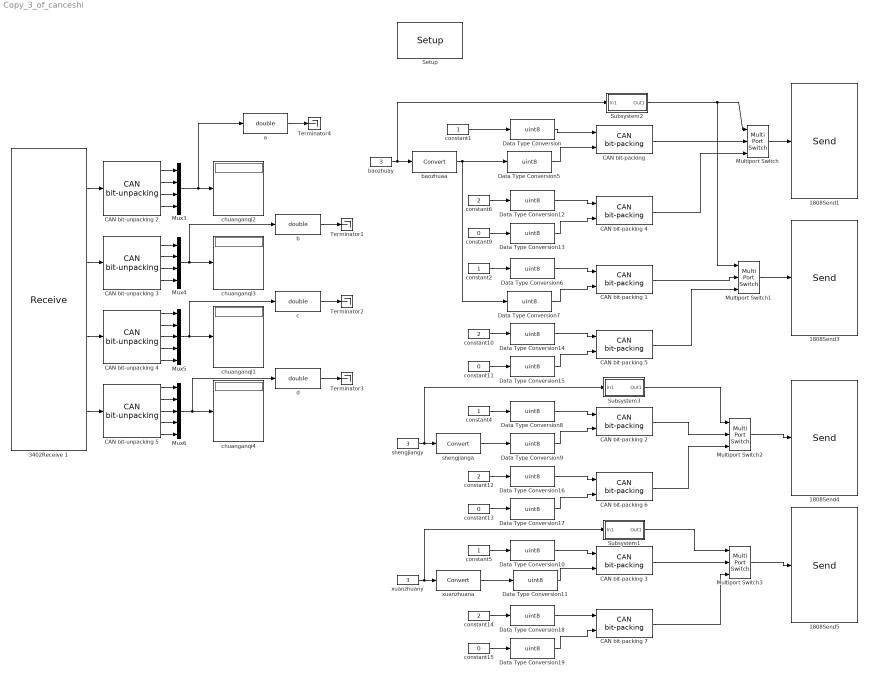
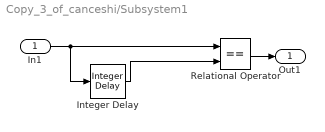
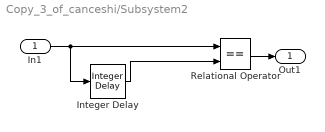
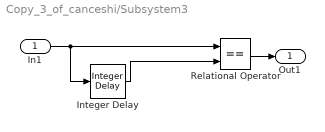
/*
 * Copy_3_of_canceshi.c
 *
 * Real-Time Workshop code generation for Simulink model "Copy_3_of_canceshi.mdl".
 *
 * Model version              : 1.71
 * Real-Time Workshop version : 7.6  (R2010b)  03-Aug-2010
 * C source code generated on : Wed May 27 09:28:19 2020
 *
 * Target selection: xpctarget.tlc
 * Note: GRT includes extra infrastructure and instrumentation for prototyping
 * Embedded hardware selection: Generic->32-bit x86 compatible
 * Code generation objectives: Unspecified
 * Validation result: Not run
 */

#include "rt_logging_mmi.h"
#include "Copy_3_of_canceshi_capi.h"
#include "Copy_3_of_canceshi.h"
#include "Copy_3_of_canceshi_private.h"
#include <stdio.h>
#include "Copy_3_of_canceshi_dt.h"

/* Block signals (auto storage) */
BlockIO_Copy_3_of_canceshi Copy_3_of_canceshi_B;

/* Block states (auto storage) */
D_Work_Copy_3_of_canceshi Copy_3_of_canceshi_DWork;

/* Real-time model */
rtModel_Copy_3_of_canceshi Copy_3_of_canceshi_rtM_;
rtModel_Copy_3_of_canceshi *Copy_3_of_canceshi_rtM = &Copy_3_of_canceshi_rtM_;

/* Model output function */
void Copy_3_of_canceshi_output(int_T tid)
{
  real_T tmp;

  /* S-Function (sfix_udelay): '<S2>/Integer Delay' */
  Copy_3_of_canceshi_B.IntegerDelay = Copy_3_of_canceshi_DWork.IntegerDelay_X;

  /* RelationalOperator: '<S2>/Relational Operator' incorporates:
   *  Constant: '<Root>/baozhuay'
   */
  Copy_3_of_canceshi_B.RelationalOperator = (Copy_3_of_canceshi_P.baozhuay_Value
    == Copy_3_of_canceshi_B.IntegerDelay);

  /* DataTypeConversion: '<Root>/Data Type Conversion' incorporates:
   *  Constant: '<Root>/constant1'
   */
  tmp = Copy_3_of_canceshi_P.constant1_Value;
  if (rtIsNaN(tmp) || rtIsInf(tmp)) {
    tmp = 0.0;
  } else {
    tmp = fmod(floor(tmp), 256.0);
  }

  Copy_3_of_canceshi_B.DataTypeConversion = (uint8_T)(tmp < 0.0 ? (uint8_T)
    (int8_T)(-((int8_T)(uint8_T)(-tmp))) : (uint8_T)tmp);

  /* DataTypeConversion: '<Root>/baozhuaa' incorporates:
   *  Constant: '<Root>/baozhuay'
   */
  Copy_3_of_canceshi_B.baozhuaa = Copy_3_of_canceshi_P.baozhuay_Value;

  /* DataTypeConversion: '<Root>/Data Type Conversion5' */
  tmp = Copy_3_of_canceshi_B.baozhuaa;
  if (rtIsNaN(tmp) || rtIsInf(tmp)) {
    tmp = 0.0;
  } else {
    tmp = fmod(floor(tmp), 256.0);
  }

  Copy_3_of_canceshi_B.DataTypeConversion5 = (uint8_T)(tmp < 0.0 ? (uint8_T)
    (int8_T)(-((int8_T)(uint8_T)(-tmp))) : (uint8_T)tmp);

  /* Bit Packing: <Root>/CAN bit-packing  */
  {
    uint32_T *y = (uint32_T *)&Copy_3_of_canceshi_B.CANbitpacking;
    y[0] =
      ((uint32_T)(Copy_3_of_canceshi_B.DataTypeConversion & 0xff) |
       ((uint32_T)(Copy_3_of_canceshi_B.DataTypeConversion5 & 0xff) << 8));
  }

  /* DataTypeConversion: '<Root>/Data Type Conversion12' incorporates:
   *  Constant: '<Root>/constant6'
   */
  tmp = Copy_3_of_canceshi_P.constant6_Value;
  if (rtIsNaN(tmp) || rtIsInf(tmp)) {
    tmp = 0.0;
  } else {
    tmp = fmod(floor(tmp), 256.0);
  }

  Copy_3_of_canceshi_B.DataTypeConversion12 = (uint8_T)(tmp < 0.0 ? (uint8_T)
    (int8_T)(-((int8_T)(uint8_T)(-tmp))) : (uint8_T)tmp);

  /* DataTypeConversion: '<Root>/Data Type Conversion13' incorporates:
   *  Constant: '<Root>/constant9'
   */
  tmp = Copy_3_of_canceshi_P.constant9_Value;
  if (rtIsNaN(tmp) || rtIsInf(tmp)) {
    tmp = 0.0;
  } else {
    tmp = fmod(floor(tmp), 256.0);
  }

  Copy_3_of_canceshi_B.DataTypeConversion13 = (uint8_T)(tmp < 0.0 ? (uint8_T)
    (int8_T)(-((int8_T)(uint8_T)(-tmp))) : (uint8_T)tmp);

  /* Bit Packing: <Root>/CAN bit-packing 4 */
  {
    uint32_T *y = (uint32_T *)&Copy_3_of_canceshi_B.CANbitpacking4;
    y[0] =
      ((uint32_T)(Copy_3_of_canceshi_B.DataTypeConversion12 & 0xff) |
       ((uint32_T)(Copy_3_of_canceshi_B.DataTypeConversion13 & 0xff) << 8));
  }

  /* MultiPortSwitch: '<Root>/Multiport Switch' */
  if ((int32_T)Copy_3_of_canceshi_B.RelationalOperator == 0) {
    Copy_3_of_canceshi_B.MultiportSwitch = Copy_3_of_canceshi_B.CANbitpacking;
  } else {
    Copy_3_of_canceshi_B.MultiportSwitch = Copy_3_of_canceshi_B.CANbitpacking4;
  }

  /* S-Function (canac2objsend): '<Root>/1808Send1' */
  {
    /*------------ S-Function Block: <Root>/1808Send1 ------------*/
    if (!g_xpccanac2busstatus[1-1]) {
      int_T stat;
      EFLAGS_T flags;
      flags = saveAndDisableInterrupts();
      stat = CANPC_write_object_mb1(0, 8, (uint8_T *)
        &Copy_3_of_canceshi_B.MultiportSwitch);
      restoreInterrupts(flags);
      ;
    }
  }

  /* DataTypeConversion: '<Root>/Data Type Conversion6' incorporates:
   *  Constant: '<Root>/constant2'
   */
  tmp = Copy_3_of_canceshi_P.constant2_Value;
  if (rtIsNaN(tmp) || rtIsInf(tmp)) {
    tmp = 0.0;
  } else {
    tmp = fmod(floor(tmp), 256.0);
  }

  Copy_3_of_canceshi_B.DataTypeConversion6 = (uint8_T)(tmp < 0.0 ? (uint8_T)
    (int8_T)(-((int8_T)(uint8_T)(-tmp))) : (uint8_T)tmp);

  /* DataTypeConversion: '<Root>/Data Type Conversion7' */
  tmp = Copy_3_of_canceshi_B.baozhuaa;
  if (rtIsNaN(tmp) || rtIsInf(tmp)) {
    tmp = 0.0;
  } else {
    tmp = fmod(floor(tmp), 256.0);
  }

  Copy_3_of_canceshi_B.DataTypeConversion7 = (uint8_T)(tmp < 0.0 ? (uint8_T)
    (int8_T)(-((int8_T)(uint8_T)(-tmp))) : (uint8_T)tmp);

  /* Bit Packing: <Root>/CAN bit-packing 1 */
  {
    uint32_T *y = (uint32_T *)&Copy_3_of_canceshi_B.CANbitpacking1;
    y[0] =
      ((uint32_T)(Copy_3_of_canceshi_B.DataTypeConversion6 & 0xff) |
       ((uint32_T)(Copy_3_of_canceshi_B.DataTypeConversion7 & 0xff) << 8));
  }

  /* DataTypeConversion: '<Root>/Data Type Conversion14' incorporates:
   *  Constant: '<Root>/constant10'
   */
  tmp = Copy_3_of_canceshi_P.constant10_Value;
  if (rtIsNaN(tmp) || rtIsInf(tmp)) {
    tmp = 0.0;
  } else {
    tmp = fmod(floor(tmp), 256.0);
  }

  Copy_3_of_canceshi_B.DataTypeConversion14 = (uint8_T)(tmp < 0.0 ? (uint8_T)
    (int8_T)(-((int8_T)(uint8_T)(-tmp))) : (uint8_T)tmp);

  /* DataTypeConversion: '<Root>/Data Type Conversion15' incorporates:
   *  Constant: '<Root>/constant11'
   */
  tmp = Copy_3_of_canceshi_P.constant11_Value;
  if (rtIsNaN(tmp) || rtIsInf(tmp)) {
    tmp = 0.0;
  } else {
    tmp = fmod(floor(tmp), 256.0);
  }

  Copy_3_of_canceshi_B.DataTypeConversion15 = (uint8_T)(tmp < 0.0 ? (uint8_T)
    (int8_T)(-((int8_T)(uint8_T)(-tmp))) : (uint8_T)tmp);

  /* Bit Packing: <Root>/CAN bit-packing 5 */
  {
    uint32_T *y = (uint32_T *)&Copy_3_of_canceshi_B.CANbitpacking5;
    y[0] =
      ((uint32_T)(Copy_3_of_canceshi_B.DataTypeConversion14 & 0xff) |
       ((uint32_T)(Copy_3_of_canceshi_B.DataTypeConversion15 & 0xff) << 8));
  }

  /* MultiPortSwitch: '<Root>/Multiport Switch1' */
  if ((int32_T)Copy_3_of_canceshi_B.RelationalOperator == 0) {
    Copy_3_of_canceshi_B.MultiportSwitch1 = Copy_3_of_canceshi_B.CANbitpacking1;
  } else {
    Copy_3_of_canceshi_B.MultiportSwitch1 = Copy_3_of_canceshi_B.CANbitpacking5;
  }

  /* S-Function (canac2objsend): '<Root>/1808Send3' */
  {
    /*------------ S-Function Block: <Root>/1808Send3 ------------*/
    if (!g_xpccanac2busstatus[1-1]) {
      int_T stat;
      EFLAGS_T flags;
      flags = saveAndDisableInterrupts();
      stat = CANPC_write_object2_mb1(0, 8, (uint8_T *)
        &Copy_3_of_canceshi_B.MultiportSwitch1);
      restoreInterrupts(flags);
      ;
    }
  }

  /* S-Function (sfix_udelay): '<S3>/Integer Delay' */
  Copy_3_of_canceshi_B.IntegerDelay_j =
    Copy_3_of_canceshi_DWork.IntegerDelay_X_b;

  /* RelationalOperator: '<S3>/Relational Operator' incorporates:
   *  Constant: '<Root>/shengjiangy'
   */
  Copy_3_of_canceshi_B.RelationalOperator_h =
    (Copy_3_of_canceshi_P.shengjiangy_Value ==
     Copy_3_of_canceshi_B.IntegerDelay_j);

  /* DataTypeConversion: '<Root>/Data Type Conversion8' incorporates:
   *  Constant: '<Root>/constant4'
   */
  tmp = Copy_3_of_canceshi_P.constant4_Value;
  if (rtIsNaN(tmp) || rtIsInf(tmp)) {
    tmp = 0.0;
  } else {
    tmp = fmod(floor(tmp), 256.0);
  }

  Copy_3_of_canceshi_B.DataTypeConversion8 = (uint8_T)(tmp < 0.0 ? (uint8_T)
    (int8_T)(-((int8_T)(uint8_T)(-tmp))) : (uint8_T)tmp);

  /* DataTypeConversion: '<Root>/shengjianga' incorporates:
   *  Constant: '<Root>/shengjiangy'
   */
  Copy_3_of_canceshi_B.shengjianga = Copy_3_of_canceshi_P.shengjiangy_Value;

  /* DataTypeConversion: '<Root>/Data Type Conversion9' */
  tmp = Copy_3_of_canceshi_B.shengjianga;
  if (rtIsNaN(tmp) || rtIsInf(tmp)) {
    tmp = 0.0;
  } else {
    tmp = fmod(floor(tmp), 256.0);
  }

  Copy_3_of_canceshi_B.DataTypeConversion9 = (uint8_T)(tmp < 0.0 ? (uint8_T)
    (int8_T)(-((int8_T)(uint8_T)(-tmp))) : (uint8_T)tmp);

  /* Bit Packing: <Root>/CAN bit-packing 2 */
  {
    uint32_T *y = (uint32_T *)&Copy_3_of_canceshi_B.CANbitpacking2;
    y[0] =
      ((uint32_T)(Copy_3_of_canceshi_B.DataTypeConversion8 & 0xff) |
       ((uint32_T)(Copy_3_of_canceshi_B.DataTypeConversion9 & 0xff) << 8));
  }

  /* DataTypeConversion: '<Root>/Data Type Conversion16' incorporates:
   *  Constant: '<Root>/constant12'
   */
  tmp = Copy_3_of_canceshi_P.constant12_Value;
  if (rtIsNaN(tmp) || rtIsInf(tmp)) {
    tmp = 0.0;
  } else {
    tmp = fmod(floor(tmp), 256.0);
  }

  Copy_3_of_canceshi_B.DataTypeConversion16 = (uint8_T)(tmp < 0.0 ? (uint8_T)
    (int8_T)(-((int8_T)(uint8_T)(-tmp))) : (uint8_T)tmp);

  /* DataTypeConversion: '<Root>/Data Type Conversion17' incorporates:
   *  Constant: '<Root>/constant13'
   */
  tmp = Copy_3_of_canceshi_P.constant13_Value;
  if (rtIsNaN(tmp) || rtIsInf(tmp)) {
    tmp = 0.0;
  } else {
    tmp = fmod(floor(tmp), 256.0);
  }

  Copy_3_of_canceshi_B.DataTypeConversion17 = (uint8_T)(tmp < 0.0 ? (uint8_T)
    (int8_T)(-((int8_T)(uint8_T)(-tmp))) : (uint8_T)tmp);

  /* Bit Packing: <Root>/CAN bit-packing 6 */
  {
    uint32_T *y = (uint32_T *)&Copy_3_of_canceshi_B.CANbitpacking6;
    y[0] =
      ((uint32_T)(Copy_3_of_canceshi_B.DataTypeConversion16 & 0xff) |
       ((uint32_T)(Copy_3_of_canceshi_B.DataTypeConversion17 & 0xff) << 8));
  }

  /* MultiPortSwitch: '<Root>/Multiport Switch2' */
  if ((int32_T)Copy_3_of_canceshi_B.RelationalOperator_h == 0) {
    Copy_3_of_canceshi_B.MultiportSwitch2 = Copy_3_of_canceshi_B.CANbitpacking2;
  } else {
    Copy_3_of_canceshi_B.MultiportSwitch2 = Copy_3_of_canceshi_B.CANbitpacking6;
  }

  /* S-Function (canac2objsend): '<Root>/1808Send4' */
  {
    /*------------ S-Function Block: <Root>/1808Send4 ------------*/
    if (!g_xpccanac2busstatus[1-1]) {
      int_T stat;
      EFLAGS_T flags;
      flags = saveAndDisableInterrupts();
      stat = CANPC_write_object2_mb1(1, 8, (uint8_T *)
        &Copy_3_of_canceshi_B.MultiportSwitch2);
      restoreInterrupts(flags);
      ;
    }
  }

  /* S-Function (sfix_udelay): '<S1>/Integer Delay' */
  Copy_3_of_canceshi_B.IntegerDelay_d =
    Copy_3_of_canceshi_DWork.IntegerDelay_X_h;

  /* RelationalOperator: '<S1>/Relational Operator' incorporates:
   *  Constant: '<Root>/xuanzhuany'
   */
  Copy_3_of_canceshi_B.RelationalOperator_e =
    (Copy_3_of_canceshi_P.xuanzhuany_Value ==
     Copy_3_of_canceshi_B.IntegerDelay_d);

  /* DataTypeConversion: '<Root>/Data Type Conversion10' incorporates:
   *  Constant: '<Root>/constant5'
   */
  tmp = Copy_3_of_canceshi_P.constant5_Value;
  if (rtIsNaN(tmp) || rtIsInf(tmp)) {
    tmp = 0.0;
  } else {
    tmp = fmod(floor(tmp), 256.0);
  }

  Copy_3_of_canceshi_B.DataTypeConversion10 = (uint8_T)(tmp < 0.0 ? (uint8_T)
    (int8_T)(-((int8_T)(uint8_T)(-tmp))) : (uint8_T)tmp);

  /* DataTypeConversion: '<Root>/xuanzhuana' incorporates:
   *  Constant: '<Root>/xuanzhuany'
   */
  Copy_3_of_canceshi_B.xuanzhuana = Copy_3_of_canceshi_P.xuanzhuany_Value;

  /* DataTypeConversion: '<Root>/Data Type Conversion11' */
  tmp = Copy_3_of_canceshi_B.xuanzhuana;
  if (rtIsNaN(tmp) || rtIsInf(tmp)) {
    tmp = 0.0;
  } else {
    tmp = fmod(floor(tmp), 256.0);
  }

  Copy_3_of_canceshi_B.DataTypeConversion11 = (uint8_T)(tmp < 0.0 ? (uint8_T)
    (int8_T)(-((int8_T)(uint8_T)(-tmp))) : (uint8_T)tmp);

  /* Bit Packing: <Root>/CAN bit-packing 3 */
  {
    uint32_T *y = (uint32_T *)&Copy_3_of_canceshi_B.CANbitpacking3;
    y[0] =
      ((uint32_T)(Copy_3_of_canceshi_B.DataTypeConversion10 & 0xff) |
       ((uint32_T)(Copy_3_of_canceshi_B.DataTypeConversion11 & 0xff) << 8));
  }

  /* DataTypeConversion: '<Root>/Data Type Conversion18' incorporates:
   *  Constant: '<Root>/constant14'
   */
  tmp = Copy_3_of_canceshi_P.constant14_Value;
  if (rtIsNaN(tmp) || rtIsInf(tmp)) {
    tmp = 0.0;
  } else {
    tmp = fmod(floor(tmp), 256.0);
  }

  Copy_3_of_canceshi_B.DataTypeConversion18 = (uint8_T)(tmp < 0.0 ? (uint8_T)
    (int8_T)(-((int8_T)(uint8_T)(-tmp))) : (uint8_T)tmp);

  /* DataTypeConversion: '<Root>/Data Type Conversion19' incorporates:
   *  Constant: '<Root>/constant15'
   */
  tmp = Copy_3_of_canceshi_P.constant15_Value;
  if (rtIsNaN(tmp) || rtIsInf(tmp)) {
    tmp = 0.0;
  } else {
    tmp = fmod(floor(tmp), 256.0);
  }

  Copy_3_of_canceshi_B.DataTypeConversion19 = (uint8_T)(tmp < 0.0 ? (uint8_T)
    (int8_T)(-((int8_T)(uint8_T)(-tmp))) : (uint8_T)tmp);

  /* Bit Packing: <Root>/CAN bit-packing 7 */
  {
    uint32_T *y = (uint32_T *)&Copy_3_of_canceshi_B.CANbitpacking7;
    y[0] =
      ((uint32_T)(Copy_3_of_canceshi_B.DataTypeConversion18 & 0xff) |
       ((uint32_T)(Copy_3_of_canceshi_B.DataTypeConversion19 & 0xff) << 8));
  }

  /* MultiPortSwitch: '<Root>/Multiport Switch3' */
  if ((int32_T)Copy_3_of_canceshi_B.RelationalOperator_e == 0) {
    Copy_3_of_canceshi_B.MultiportSwitch3 = Copy_3_of_canceshi_B.CANbitpacking3;
  } else {
    Copy_3_of_canceshi_B.MultiportSwitch3 = Copy_3_of_canceshi_B.CANbitpacking7;
  }

  /* S-Function (canac2objsend): '<Root>/1808Send5' */
  {
    /*------------ S-Function Block: <Root>/1808Send5 ------------*/
    if (!g_xpccanac2busstatus[1-1]) {
      int_T stat;
      EFLAGS_T flags;
      flags = saveAndDisableInterrupts();
      stat = CANPC_write_object2_mb1(2, 8, (uint8_T *)
        &Copy_3_of_canceshi_B.MultiportSwitch3);
      restoreInterrupts(flags);
      ;
    }
  }

  /* S-Function (canac2objreceive): '<Root>/3402Receive 1' */
  {
    /*------------ S-Function Block: <Root>/3402Receive 1 ------------*/
    if (!g_xpccanac2busstatus[1-1]) {
      int_T stat;
      EFLAGS_T flags;
      unsigned long time;
      uint8_T p_data[8];
      flags = saveAndDisableInterrupts();
      stat = CANPC_read_rcv_data2_mb1(0, p_data, &time );
      restoreInterrupts(flags);
      if (stat > 0 || stat == -1 || stat == -2) {
        memcpy( &Copy_3_of_canceshi_B.u02Receive1_o1, p_data, 8);
      }

      flags = saveAndDisableInterrupts();
      stat = CANPC_read_rcv_data2_mb1(1, p_data, &time );
      restoreInterrupts(flags);
      if (stat > 0 || stat == -1 || stat == -2) {
        memcpy( &Copy_3_of_canceshi_B.u02Receive1_o2, p_data, 8);
      }

      flags = saveAndDisableInterrupts();
      stat = CANPC_read_rcv_data2_mb1(2, p_data, &time );
      restoreInterrupts(flags);
      if (stat > 0 || stat == -1 || stat == -2) {
        memcpy( &Copy_3_of_canceshi_B.u02Receive1_o3, p_data, 8);
      }

      flags = saveAndDisableInterrupts();
      stat = CANPC_read_rcv_data2_mb1(3, p_data, &time );
      restoreInterrupts(flags);
      if (stat > 0 || stat == -1 || stat == -2) {
        memcpy( &Copy_3_of_canceshi_B.u02Receive1_o4, p_data, 8);
      }
    }
  }

  /* Bit Unpacking: <Root>/CAN bit-unpacking 4 */
  {
    const uint32_T *y = (const uint32_T *)&Copy_3_of_canceshi_B.u02Receive1_o3;

    /* Output Port 1 */
    Copy_3_of_canceshi_B.CANbitunpacking4_o1 = (uint8_T)
      (y[0] & 0xff);

    /* Output Port 2 */
    Copy_3_of_canceshi_B.CANbitunpacking4_o2 = (uint8_T)
      ((y[0] & (0xff << 8)) >> 8);

    /* Output Port 3 */
    Copy_3_of_canceshi_B.CANbitunpacking4_o3 = (uint8_T)
      ((y[0] & (0xff << 16)) >> 16);

    /* Output Port 4 */
    Copy_3_of_canceshi_B.CANbitunpacking4_o4 = (uint8_T)
      ((y[0] & (0xff << 24)) >> 24);

    /* Output Port 5 */
    Copy_3_of_canceshi_B.CANbitunpacking4_o5 = (uint8_T)
      (y[1] & 0xff);
  }

  /* Bit Unpacking: <Root>/CAN bit-unpacking 2 */
  {
    const uint32_T *y = (const uint32_T *)&Copy_3_of_canceshi_B.u02Receive1_o1;

    /* Output Port 1 */
    Copy_3_of_canceshi_B.CANbitunpacking2_o1 = (uint8_T)
      (y[0] & 0xff);

    /* Output Port 2 */
    Copy_3_of_canceshi_B.CANbitunpacking2_o2 = (uint8_T)
      ((y[0] & (0xff << 8)) >> 8);

    /* Output Port 3 */
    Copy_3_of_canceshi_B.CANbitunpacking2_o3 = (uint8_T)
      ((y[0] & (0xff << 16)) >> 16);

    /* Output Port 4 */
    Copy_3_of_canceshi_B.CANbitunpacking2_o4 = (uint8_T)
      ((y[0] & (0xff << 24)) >> 24);
  }

  /* Bit Unpacking: <Root>/CAN bit-unpacking 3 */
  {
    const uint32_T *y = (const uint32_T *)&Copy_3_of_canceshi_B.u02Receive1_o2;

    /* Output Port 1 */
    Copy_3_of_canceshi_B.CANbitunpacking3_o1 = (uint8_T)
      (y[0] & 0xff);

    /* Output Port 2 */
    Copy_3_of_canceshi_B.CANbitunpacking3_o2 = (uint8_T)
      ((y[0] & (0xff << 8)) >> 8);

    /* Output Port 3 */
    Copy_3_of_canceshi_B.CANbitunpacking3_o3 = (uint8_T)
      ((y[0] & (0xff << 16)) >> 16);

    /* Output Port 4 */
    Copy_3_of_canceshi_B.CANbitunpacking3_o4 = (uint8_T)
      ((y[0] & (0xff << 24)) >> 24);
  }

  /* Bit Unpacking: <Root>/CAN bit-unpacking 5 */
  {
    const uint32_T *y = (const uint32_T *)&Copy_3_of_canceshi_B.u02Receive1_o4;

    /* Output Port 1 */
    Copy_3_of_canceshi_B.CANbitunpacking5_o1 = (uint8_T)
      (y[0] & 0xff);

    /* Output Port 2 */
    Copy_3_of_canceshi_B.CANbitunpacking5_o2 = (uint8_T)
      ((y[0] & (0xff << 8)) >> 8);

    /* Output Port 3 */
    Copy_3_of_canceshi_B.CANbitunpacking5_o3 = (uint8_T)
      ((y[0] & (0xff << 16)) >> 16);

    /* Output Port 4 */
    Copy_3_of_canceshi_B.CANbitunpacking5_o4 = (uint8_T)
      ((y[0] & (0xff << 24)) >> 24);

    /* Output Port 5 */
    Copy_3_of_canceshi_B.CANbitunpacking5_o5 = (uint8_T)
      (y[1] & 0xff);
  }

  /* DataTypeConversion: '<Root>/a' */
  Copy_3_of_canceshi_B.a[0] = (real_T)Copy_3_of_canceshi_B.CANbitunpacking2_o1;
  Copy_3_of_canceshi_B.a[1] = (real_T)Copy_3_of_canceshi_B.CANbitunpacking2_o2;
  Copy_3_of_canceshi_B.a[2] = (real_T)Copy_3_of_canceshi_B.CANbitunpacking2_o3;
  Copy_3_of_canceshi_B.a[3] = (real_T)Copy_3_of_canceshi_B.CANbitunpacking2_o4;

  /* DataTypeConversion: '<Root>/b' */
  Copy_3_of_canceshi_B.b[0] = (real_T)Copy_3_of_canceshi_B.CANbitunpacking3_o1;
  Copy_3_of_canceshi_B.b[1] = (real_T)Copy_3_of_canceshi_B.CANbitunpacking3_o2;
  Copy_3_of_canceshi_B.b[2] = (real_T)Copy_3_of_canceshi_B.CANbitunpacking3_o3;
  Copy_3_of_canceshi_B.b[3] = (real_T)Copy_3_of_canceshi_B.CANbitunpacking3_o4;

  /* DataTypeConversion: '<Root>/c' */
  Copy_3_of_canceshi_B.c[0] = (real_T)Copy_3_of_canceshi_B.CANbitunpacking4_o1;
  Copy_3_of_canceshi_B.c[1] = (real_T)Copy_3_of_canceshi_B.CANbitunpacking4_o2;
  Copy_3_of_canceshi_B.c[2] = (real_T)Copy_3_of_canceshi_B.CANbitunpacking4_o3;
  Copy_3_of_canceshi_B.c[3] = (real_T)Copy_3_of_canceshi_B.CANbitunpacking4_o4;
  Copy_3_of_canceshi_B.c[4] = (real_T)Copy_3_of_canceshi_B.CANbitunpacking4_o5;

  /* DataTypeConversion: '<Root>/d' */
  Copy_3_of_canceshi_B.d[0] = (real_T)Copy_3_of_canceshi_B.CANbitunpacking5_o1;
  Copy_3_of_canceshi_B.d[1] = (real_T)Copy_3_of_canceshi_B.CANbitunpacking5_o2;
  Copy_3_of_canceshi_B.d[2] = (real_T)Copy_3_of_canceshi_B.CANbitunpacking5_o3;
  Copy_3_of_canceshi_B.d[3] = (real_T)Copy_3_of_canceshi_B.CANbitunpacking5_o4;
  Copy_3_of_canceshi_B.d[4] = (real_T)Copy_3_of_canceshi_B.CANbitunpacking5_o5;

  /* Level2 S-Function Block: '<Root>/Setup ' (canac2pcisetup) */
  {
    SimStruct *rts = Copy_3_of_canceshi_rtM->childSfunctions[0];
    sfcnOutputs(rts, 0);
  }

  /* tid is required for a uniform function interface.
   * Argument tid is not used in the function. */
  UNUSED_PARAMETER(tid);
}

/* Model update function */
void Copy_3_of_canceshi_update(int_T tid)
{
  /* Update for S-Function (sfix_udelay): '<S2>/Integer Delay' incorporates:
   *  Constant: '<Root>/baozhuay'
   */
  Copy_3_of_canceshi_DWork.IntegerDelay_X = Copy_3_of_canceshi_P.baozhuay_Value;

  /* Update for S-Function (sfix_udelay): '<S3>/Integer Delay' incorporates:
   *  Constant: '<Root>/shengjiangy'
   */
  Copy_3_of_canceshi_DWork.IntegerDelay_X_b =
    Copy_3_of_canceshi_P.shengjiangy_Value;

  /* Update for S-Function (sfix_udelay): '<S1>/Integer Delay' incorporates:
   *  Constant: '<Root>/xuanzhuany'
   */
  Copy_3_of_canceshi_DWork.IntegerDelay_X_h =
    Copy_3_of_canceshi_P.xuanzhuany_Value;

  /* Update absolute time for base rate */
  /* The "clockTick0" counts the number of times the code of this task has
   * been executed. The absolute time is the multiplication of "clockTick0"
   * and "Timing.stepSize0". Size of "clockTick0" ensures timer will not
   * overflow during the application lifespan selected.
   * Timer of this task consists of two 32 bit unsigned integers.
   * The two integers represent the low bits Timing.clockTick0 and the high bits
   * Timing.clockTickH0. When the low bit overflows to 0, the high bits increment.
   */
  if (!(++Copy_3_of_canceshi_rtM->Timing.clockTick0)) {
    ++Copy_3_of_canceshi_rtM->Timing.clockTickH0;
  }

  Copy_3_of_canceshi_rtM->Timing.t[0] =
    Copy_3_of_canceshi_rtM->Timing.clockTick0 *
    Copy_3_of_canceshi_rtM->Timing.stepSize0 +
    Copy_3_of_canceshi_rtM->Timing.clockTickH0 *
    Copy_3_of_canceshi_rtM->Timing.stepSize0 * 4294967296.0;

  /* tid is required for a uniform function interface.
   * Argument tid is not used in the function. */
  UNUSED_PARAMETER(tid);
}
